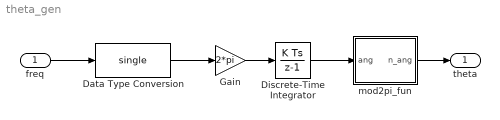
== matlab function theta_gen/mod2pi_fun ==
function n_ang = mod2pi(ang)
    % 将角度限制在0到2π范围内
    TWO_PI = single(2*pi);
    n_ang = single(ang);
    while n_ang < 0
        n_ang = n_ang + TWO_PI;
    end
    while n_ang >= TWO_PI
        n_ang = n_ang - TWO_PI;
    end
end

/*
 * File: theta_gen.c
 *
 * Code generated for Simulink model 'theta_gen'.
 *
 * Model version                  : 1.16
 * Simulink Coder version         : 9.9 (R2023a) 19-Nov-2022
 * C/C++ source code generated on : Fri Feb  7 13:23:39 2025
 *
 * Target selection: ert.tlc
 * Embedded hardware selection: ARM Compatible->ARM Cortex-M
 * Code generation objectives:
 *    1. Execution efficiency
 *    2. Traceability
 * Validation result: Not run
 */

#include "theta_gen.h"

/* Block signals and states (default storage) */
DW rtDW;

/* External inputs (root inport signals with default storage) */
ExtU rtU;

/* External outputs (root outports fed by signals with default storage) */
ExtY rtY;

/* Model step function */
void theta_gen_step(void)
{
    /* MATLAB Function: '<Root>/mod2pi_fun' incorporates:
     *  DiscreteIntegrator: '<Root>/Discrete-Time Integrator'
     */
    rtY.theta = rtDW.DiscreteTimeIntegrator_DSTATE;
    while (rtY.theta < 0.0F)
    {
        rtY.theta += 6.28318548F;
    }

    while (rtY.theta >= 6.28318548F)
    {
        rtY.theta -= 6.28318548F;
    }

    /* End of MATLAB Function: '<Root>/mod2pi_fun' */

    /* Update for DiscreteIntegrator: '<Root>/Discrete-Time Integrator' incorporates:
     *  Gain: '<Root>/Gain'
     *  Inport: '<Root>/freq'
     */
    rtDW.DiscreteTimeIntegrator_DSTATE += 6.28318548F * rtU.freq * 1.0E-5F;
}
